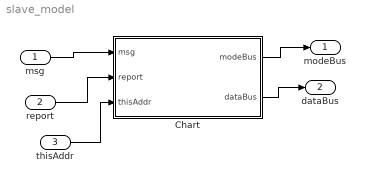
== stateflow chart slave_model/Chart ==
  state init
  state addrValidation
  state sendReport
  state getMsg
  addrValidation -> sendReport [order 2] : [msg==thisAddr]{modeBus=0,dataBus=report}
  init -> addrValidation : [msg==1]
  (default) -> init
  sendReport -> getMsg : {modeBus=1}
  getMsg -> init [order 2] : [msg==0]
  addrValidation -> init [order 1] : [msg~=thisAddr]
  getMsg -> sendReport [order 1] : [msg~=0]{modeBus=0; dataBus=report}
  data: msg input uint8; modeBus output uint8; dataBus output uint8; report input uint8; thisAddr input uint8

/*
 * File: slave_model.c
 *
 * Code generated for Simulink model 'slave_model'.
 *
 * Model version                  : 1.5
 * Simulink Coder version         : 9.3 (R2020a) 18-Nov-2019
 * C/C++ source code generated on : Fri Jan 22 00:04:44 2021
 *
 * Target selection: ert.tlc
 * Embedded hardware selection: Atmel->AVR
 * Code generation objectives: Unspecified
 * Validation result: Not run
 */

#include "slave_model.h"
#include "slave_model_private.h"

/* Named constants for Chart: '<Root>/Chart' */
#define slave_model_IN_addrValidation  ((uint8_T)1U)
#define slave_model_IN_getMsg          ((uint8_T)2U)
#define slave_model_IN_init            ((uint8_T)3U)
#define slave_model_IN_sendReport      ((uint8_T)4U)

/* Block states (default storage) */
DW_slave_model_T slave_model_DW;

/* External inputs (root inport signals with default storage) */
ExtU_slave_model_T slave_model_U;

/* External outputs (root outports fed by signals with default storage) */
ExtY_slave_model_T slave_model_Y;

/* Real-time model */
RT_MODEL_slave_model_T slave_model_M_;
RT_MODEL_slave_model_T *const slave_model_M = &slave_model_M_;

/* Model step function */
void slave_model_step(void)
{
  /* Chart: '<Root>/Chart' incorporates:
   *  Inport: '<Root>/msg'
   *  Inport: '<Root>/thisAddr'
   */
  if (slave_model_DW.is_active_c3_slave_model == 0U) {
    slave_model_DW.is_active_c3_slave_model = 1U;
    slave_model_DW.is_c3_slave_model = slave_model_IN_init;
  } else {
    switch (slave_model_DW.is_c3_slave_model) {
     case slave_model_IN_addrValidation:
      if (slave_model_U.msg != slave_model_U.thisAddr) {
        slave_model_DW.is_c3_slave_model = slave_model_IN_init;
      } else {
        if (slave_model_U.msg == slave_model_U.thisAddr) {
          /* Outport: '<Root>/modeBus' */
          slave_model_Y.modeBus = 0U;

          /* Outport: '<Root>/dataBus' incorporates:
           *  Inport: '<Root>/report'
           */
          slave_model_Y.dataBus = slave_model_U.report;
          slave_model_DW.is_c3_slave_model = slave_model_IN_sendReport;
        }
      }
      break;

     case slave_model_IN_getMsg:
      if (slave_model_U.msg != 0) {
        /* Outport: '<Root>/modeBus' */
        slave_model_Y.modeBus = 0U;

        /* Outport: '<Root>/dataBus' incorporates:
         *  Inport: '<Root>/report'
         */
        slave_model_Y.dataBus = slave_model_U.report;
        slave_model_DW.is_c3_slave_model = slave_model_IN_sendReport;
      } else {
        if (slave_model_U.msg == 0) {
          slave_model_DW.is_c3_slave_model = slave_model_IN_init;
        }
      }
      break;

     case slave_model_IN_init:
      if (slave_model_U.msg == 1) {
        slave_model_DW.is_c3_slave_model = slave_model_IN_addrValidation;
      }
      break;

     default:
      /* Outport: '<Root>/modeBus' */
      /* case IN_sendReport: */
      slave_model_Y.modeBus = 1U;
      slave_model_DW.is_c3_slave_model = slave_model_IN_getMsg;
      break;
    }
  }

  /* End of Chart: '<Root>/Chart' */
}
